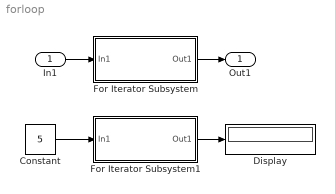
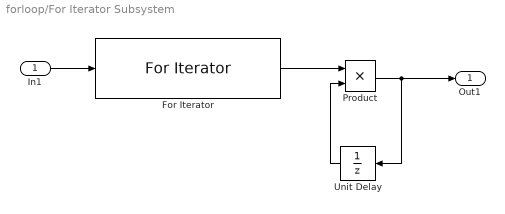
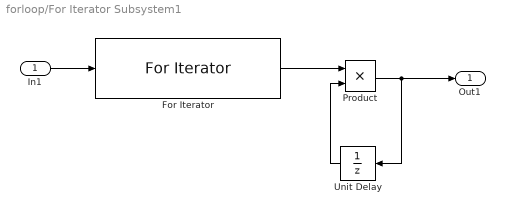
/*
 * File: forloop.c
 *
 * Code generated for Simulink model 'forloop'.
 *
 * Model version                  : 1.2
 * Simulink Coder version         : 9.5 (R2021a) 14-Nov-2020
 * C/C++ source code generated on : Tue Feb  6 14:00:38 2024
 *
 * Target selection: ert.tlc
 * Embedded hardware selection: Intel->x86-64 (Windows64)
 * Code generation objectives:
 *    1. RAM efficiency
 *    2. Execution efficiency
 * Validation result: Not run
 */

#include "forloop.h"
#include "forloop_private.h"

/* Block states (default storage) */
DW_forloop_T forloop_DW;

/* External inputs (root inport signals with default storage) */
ExtU_forloop_T forloop_U;

/* External outputs (root outports fed by signals with default storage) */
ExtY_forloop_T forloop_Y;

/* Real-time model */
static RT_MODEL_forloop_T forloop_M_;
RT_MODEL_forloop_T *const forloop_M = &forloop_M_;

/* Model step function */
void forloop_step(void)
{
  uint16_T s1_iter;
  uint16_T tmp;

  /* Outputs for Iterator SubSystem: '<Root>/For Iterator Subsystem' incorporates:
   *  ForIterator: '<S1>/For Iterator'
   */
  /* Inport: '<Root>/In1' */
  tmp = forloop_U.In1;
  if (forloop_U.In1 > 65534) {
    tmp = 65534U;
  }

  /* End of Inport: '<Root>/In1' */
  for (s1_iter = 1U; s1_iter <= tmp; s1_iter++) {
    /* Outport: '<Root>/Out1' incorporates:
     *  Product: '<S1>/Product'
     *  UnitDelay: '<S1>/Unit Delay'
     */
    forloop_Y.Out1 = (uint16_T)((uint32_T)s1_iter * forloop_DW.UnitDelay_DSTATE);

    /* Update for UnitDelay: '<S1>/Unit Delay' incorporates:
     *  Outport: '<Root>/Out1'
     */
    forloop_DW.UnitDelay_DSTATE = forloop_Y.Out1;
  }

  /* End of Outputs for SubSystem: '<Root>/For Iterator Subsystem' */
}
